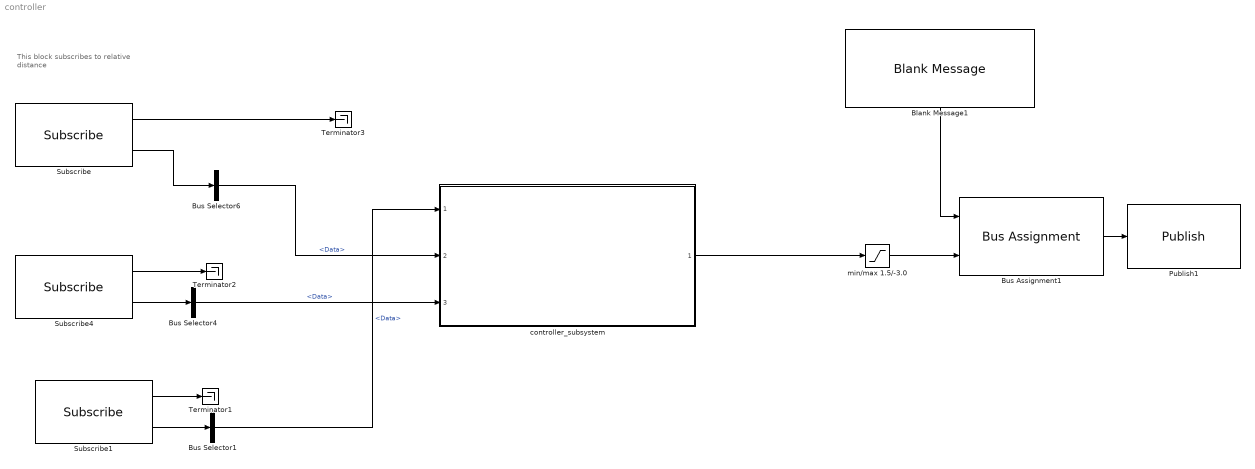
//
// Academic License - for use in teaching, academic research, and meeting
// course requirements at degree granting institutions only.  Not for
// government, commercial, or other organizational use.
//
// File: controller.cpp
//
// Code generated for Simulink model 'controller'.
//
// Model version                  : 1.44
// Simulink Coder version         : 25.2 (R2025b) 28-Jul-2025
// C/C++ source code generated on : Wed May  6 10:38:38 2026
//
// Target selection: ert.tlc
// Embedded hardware selection: Generic->Unspecified (assume 32-bit Generic)
// Code generation objectives: Unspecified
// Validation result: Not run
//
#include "controller.h"
#include "rtwtypes.h"
#include "controller_types.h"

// Block signals (default storage)
B_controller_T controller_B;

// Block states (default storage)
DW_controller_T controller_DW;

// Real-time model
RT_MODEL_controller_T controller_M_ = RT_MODEL_controller_T();
RT_MODEL_controller_T *const controller_M = &controller_M_;

// Model step function
void controller_step(void)
{
  SL_Bus_controller_std_msgs_Float64 rtb_BusAssignment1;
  SL_Bus_controller_std_msgs_Float64 rtb_SourceBlock_o2_p_0;
  real_T u0;
  boolean_T b_varargout_1;

  // Outputs for Atomic SubSystem: '<Root>/Subscribe'
  // MATLABSystem: '<S3>/SourceBlock'
  b_varargout_1 = Sub_controller_52.getLatestMessage(&rtb_SourceBlock_o2_p_0);

  // Outputs for Enabled SubSystem: '<S3>/Enabled Subsystem' incorporates:
  //   EnablePort: '<S7>/Enable'

  // Start for MATLABSystem: '<S3>/SourceBlock'
  if (b_varargout_1) {
    // SignalConversion generated from: '<S7>/In1'
    controller_B.In1_bg = rtb_SourceBlock_o2_p_0;
  }

  // End of Start for MATLABSystem: '<S3>/SourceBlock'
  // End of Outputs for SubSystem: '<S3>/Enabled Subsystem'
  // End of Outputs for SubSystem: '<Root>/Subscribe'

  // Outputs for Atomic SubSystem: '<Root>/Subscribe1'
  // MATLABSystem: '<S4>/SourceBlock'
  b_varargout_1 = Sub_controller_53.getLatestMessage(&rtb_SourceBlock_o2_p_0);

  // Outputs for Enabled SubSystem: '<S4>/Enabled Subsystem' incorporates:
  //   EnablePort: '<S8>/Enable'

  // Start for MATLABSystem: '<S4>/SourceBlock'
  if (b_varargout_1) {
    // SignalConversion generated from: '<S8>/In1'
    controller_B.In1_b = rtb_SourceBlock_o2_p_0;
  }

  // End of Start for MATLABSystem: '<S4>/SourceBlock'
  // End of Outputs for SubSystem: '<S4>/Enabled Subsystem'
  // End of Outputs for SubSystem: '<Root>/Subscribe1'

  // Outputs for Atomic SubSystem: '<Root>/Subscribe4'
  // MATLABSystem: '<S5>/SourceBlock'
  b_varargout_1 = Sub_controller_54.getLatestMessage(&rtb_SourceBlock_o2_p_0);

  // Outputs for Enabled SubSystem: '<S5>/Enabled Subsystem' incorporates:
  //   EnablePort: '<S9>/Enable'

  // Start for MATLABSystem: '<S5>/SourceBlock'
  if (b_varargout_1) {
    // SignalConversion generated from: '<S9>/In1'
    controller_B.In1 = rtb_SourceBlock_o2_p_0;
  }

  // End of Start for MATLABSystem: '<S5>/SourceBlock'
  // End of Outputs for SubSystem: '<S5>/Enabled Subsystem'
  // End of Outputs for SubSystem: '<Root>/Subscribe4'

  // Product: '<S6>/Product2' incorporates:
  //   Constant: '<S6>/d_min'
  //   Constant: '<S6>/k'
  //   Constant: '<S6>/t_min'
  //   Product: '<S6>/Product'
  //   Product: '<S6>/Product1'
  //   Sum: '<S6>/Minus'
  //   Sum: '<S6>/Plus'
  //   Sum: '<S6>/Plus1'

  u0 = ((controller_B.In1_bg.Data - (2.0 * controller_B.In1_b.Data + 15.0)) *
        0.1 + controller_B.In1.Data) * controller_ConstB.Divide;

  // Saturate: '<Root>/min//max 1.5//-3.0'
  if (u0 > 1.5) {
    // BusAssignment: '<Root>/Bus Assignment1'
    rtb_BusAssignment1.Data = 1.5;
  } else if (u0 < -3.0) {
    // BusAssignment: '<Root>/Bus Assignment1'
    rtb_BusAssignment1.Data = -3.0;
  } else {
    // BusAssignment: '<Root>/Bus Assignment1'
    rtb_BusAssignment1.Data = u0;
  }

  // End of Saturate: '<Root>/min//max 1.5//-3.0'

  // Outputs for Atomic SubSystem: '<Root>/Publish1'
  // MATLABSystem: '<S2>/SinkBlock'
  Pub_controller_49.publish(&rtb_BusAssignment1);

  // End of Outputs for SubSystem: '<Root>/Publish1'
}
